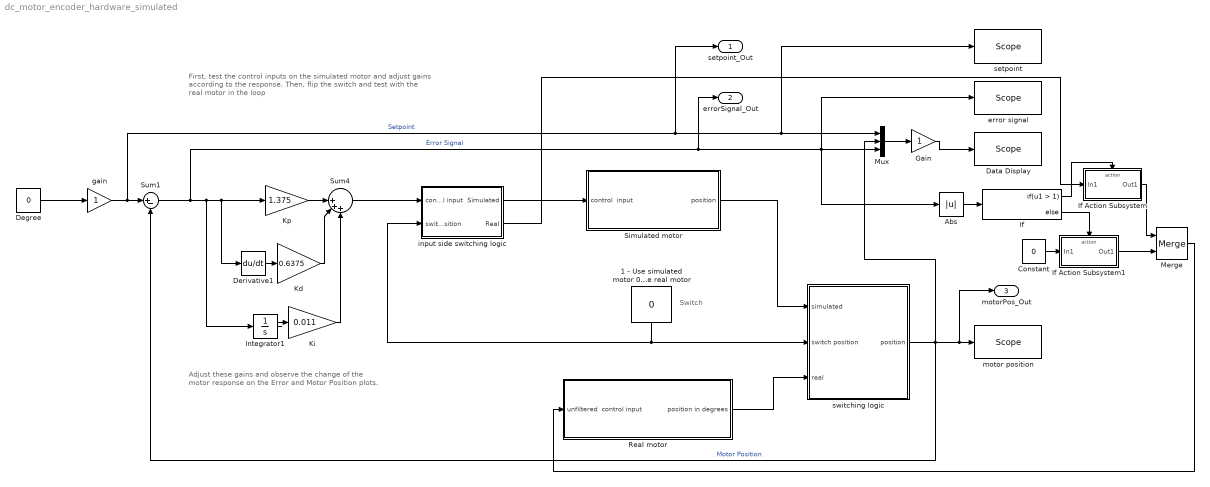
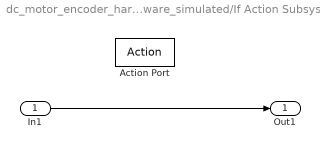
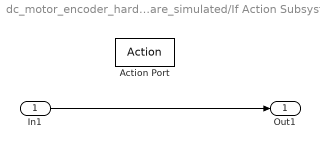
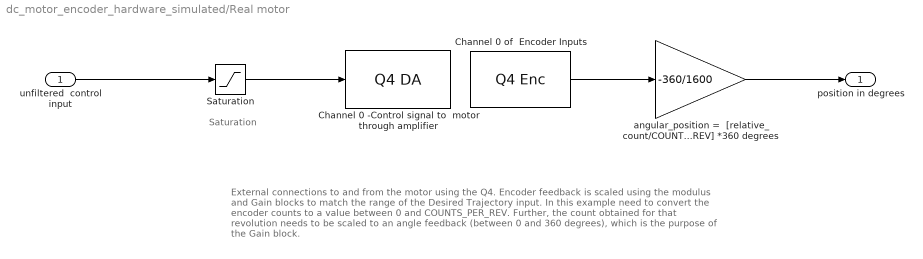
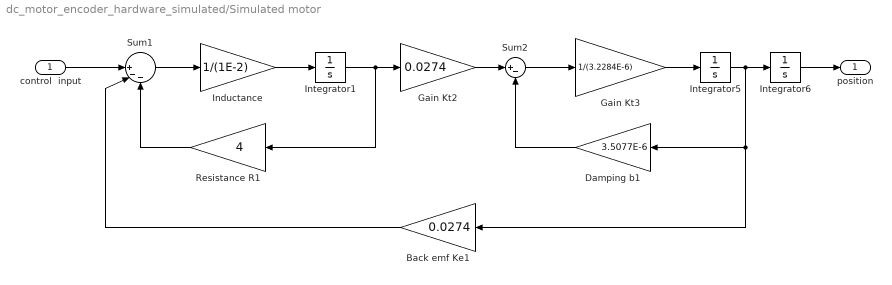
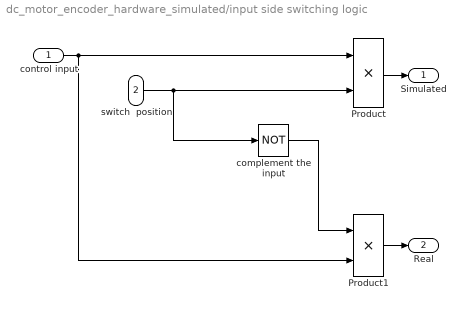
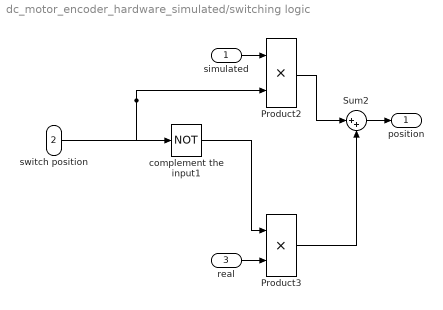
/*
 * dc_motor_encoder_hardware_simulated.c
 *
 * Academic Student License -- for use by students to meet course
 * requirements and perform academic research at degree granting
 * institutions only.  Not for government, commercial, or other
 * organizational use.
 *
 * Code generation for model "dc_motor_encoder_hardware_simulated".
 *
 * Model version              : 1.90
 * Simulink Coder version : 8.12 (R2017a) 16-Feb-2017
 * C source code generated on : Wed Mar 07 18:03:25 2018
 *
 * Target selection: slrt.tlc
 * Note: GRT includes extra infrastructure and instrumentation for prototyping
 * Embedded hardware selection: Generic->32-bit x86 compatible
 * Code generation objectives: Unspecified
 * Validation result: Not run
 */

#include "rt_logging_mmi.h"
#include "dc_motor_encoder_hardware_simulated_capi.h"
#include "dc_motor_encoder_hardware_simulated.h"
#include "dc_motor_encoder_hardware_simulated_private.h"

/* Block signals (auto storage) */
B_dc_motor_encoder_hardware_simulated_T dc_motor_encoder_hardware_simulated_B;

/* Continuous states */
X_dc_motor_encoder_hardware_simulated_T dc_motor_encoder_hardware_simulated_X;

/* Block states (auto storage) */
DW_dc_motor_encoder_hardware_simulated_T dc_motor_encoder_hardware_simulated_DW;

/* External outputs (root outports fed by signals with auto storage) */
ExtY_dc_motor_encoder_hardware_simulated_T dc_motor_encoder_hardware_simulated_Y;

/* Real-time model */
RT_MODEL_dc_motor_encoder_hardware_simulated_T
  dc_motor_encoder_hardware_simulated_M_;
RT_MODEL_dc_motor_encoder_hardware_simulated_T *const
  dc_motor_encoder_hardware_simulated_M =
  &dc_motor_encoder_hardware_simulated_M_;

/*
 * This function updates continuous states using the ODE3 fixed-step
 * solver algorithm
 */
static void rt_ertODEUpdateContinuousStates(RTWSolverInfo *si )
{
  /* Solver Matrices */
  static const real_T rt_ODE3_A[3] = {
    1.0/2.0, 3.0/4.0, 1.0
  };

  static const real_T rt_ODE3_B[3][3] = {
    { 1.0/2.0, 0.0, 0.0 },

    { 0.0, 3.0/4.0, 0.0 },

    { 2.0/9.0, 1.0/3.0, 4.0/9.0 }
  };

  time_T t = rtsiGetT(si);
  time_T tnew = rtsiGetSolverStopTime(si);
  time_T h = rtsiGetStepSize(si);
  real_T *x = rtsiGetContStates(si);
  ODE3_IntgData *id = (ODE3_IntgData *)rtsiGetSolverData(si);
  real_T *y = id->y;
  real_T *f0 = id->f[0];
  real_T *f1 = id->f[1];
  real_T *f2 = id->f[2];
  real_T hB[3];
  int_T i;
  int_T nXc = 4;
  rtsiSetSimTimeStep(si,MINOR_TIME_STEP);

  /* Save the state values at time t in y, we'll use x as ynew. */
  (void) memcpy(y, x,
                (uint_T)nXc*sizeof(real_T));

  /* Assumes that rtsiSetT and ModelOutputs are up-to-date */
  /* f0 = f(t,y) */
  rtsiSetdX(si, f0);
  dc_motor_encoder_hardware_simulated_derivatives();

  /* f(:,2) = feval(odefile, t + hA(1), y + f*hB(:,1), args(:)(*)); */
  hB[0] = h * rt_ODE3_B[0][0];
  for (i = 0; i < nXc; i++) {
    x[i] = y[i] + (f0[i]*hB[0]);
  }

  rtsiSetT(si, t + h*rt_ODE3_A[0]);
  rtsiSetdX(si, f1);
  dc_motor_encoder_hardware_simulated_output();
  dc_motor_encoder_hardware_simulated_derivatives();

  /* f(:,3) = feval(odefile, t + hA(2), y + f*hB(:,2), args(:)(*)); */
  for (i = 0; i <= 1; i++) {
    hB[i] = h * rt_ODE3_B[1][i];
  }

  for (i = 0; i < nXc; i++) {
    x[i] = y[i] + (f0[i]*hB[0] + f1[i]*hB[1]);
  }

  rtsiSetT(si, t + h*rt_ODE3_A[1]);
  rtsiSetdX(si, f2);
  dc_motor_encoder_hardware_simulated_output();
  dc_motor_encoder_hardware_simulated_derivatives();

  /* tnew = t + hA(3);
     ynew = y + f*hB(:,3); */
  for (i = 0; i <= 2; i++) {
    hB[i] = h * rt_ODE3_B[2][i];
  }

  for (i = 0; i < nXc; i++) {
    x[i] = y[i] + (f0[i]*hB[0] + f1[i]*hB[1] + f2[i]*hB[2]);
  }

  rtsiSetT(si, tnew);
  rtsiSetSimTimeStep(si,MAJOR_TIME_STEP);
}

/*
 * Output and update for action system:
 *    '<Root>/If Action Subsystem'
 *    '<Root>/If Action Subsystem1'
 */
void dc_motor_enco_IfActionSubsystem(real_T rtu_In1, real_T *rty_Out1)
{
  /* Inport: '<S2>/In1' */
  *rty_Out1 = rtu_In1;
}

/* Model output function */
void dc_motor_encoder_hardware_simulated_output(void)
{
  real_T *lastU;
  real_T lastTime;
  int8_T rtAction;
  real_T u1;
  real_T u2;
  if (rtmIsMajorTimeStep(dc_motor_encoder_hardware_simulated_M)) {
    /* set solver stop time */
    if (!(dc_motor_encoder_hardware_simulated_M->Timing.clockTick0+1)) {
      rtsiSetSolverStopTime(&dc_motor_encoder_hardware_simulated_M->solverInfo,
                            ((dc_motor_encoder_hardware_simulated_M->Timing.clockTickH0
        + 1) * dc_motor_encoder_hardware_simulated_M->Timing.stepSize0 *
        4294967296.0));
    } else {
      rtsiSetSolverStopTime(&dc_motor_encoder_hardware_simulated_M->solverInfo,
                            ((dc_motor_encoder_hardware_simulated_M->Timing.clockTick0
        + 1) * dc_motor_encoder_hardware_simulated_M->Timing.stepSize0 +
        dc_motor_encoder_hardware_simulated_M->Timing.clockTickH0 *
        dc_motor_encoder_hardware_simulated_M->Timing.stepSize0 * 4294967296.0));
    }
  }                                    /* end MajorTimeStep */

  /* Update absolute time of base rate at minor time step */
  if (rtmIsMinorTimeStep(dc_motor_encoder_hardware_simulated_M)) {
    dc_motor_encoder_hardware_simulated_M->Timing.t[0] = rtsiGetT
      (&dc_motor_encoder_hardware_simulated_M->solverInfo);
  }

  /* Reset subsysRan breadcrumbs */
  srClearBC
    (dc_motor_encoder_hardware_simulated_DW.IfActionSubsystem.IfActionSubsystem_SubsysRanBC);

  /* Integrator: '<S5>/Integrator6' */
  dc_motor_encoder_hardware_simulated_B.Integrator6 =
    dc_motor_encoder_hardware_simulated_X.Integrator6_CSTATE;

  /* Product: '<S10>/Product2' incorporates:
   *  Constant: '<Root>/1 - Use simulated motor 0 - Use real motor'
   */
  dc_motor_encoder_hardware_simulated_B.Product2 =
    dc_motor_encoder_hardware_simulated_B.Integrator6 *
    dc_motor_encoder_hardware_simulated_P.uUsesimulatedmotor0Userealmotor;
  if (rtmIsMajorTimeStep(dc_motor_encoder_hardware_simulated_M)) {
    /* Gain: '<Root>/gain' incorporates:
     *  Constant: '<Root>/Degree'
     */
    dc_motor_encoder_hardware_simulated_B.Setpoint =
      dc_motor_encoder_hardware_simulated_P.gain_Gain *
      dc_motor_encoder_hardware_simulated_P.Degree_Value;

    /* Outport: '<Root>/setpoint_Out' */
    dc_motor_encoder_hardware_simulated_Y.setpoint_Out =
      dc_motor_encoder_hardware_simulated_B.Setpoint;

    /* Logic: '<S10>/complement the input1' incorporates:
     *  Constant: '<Root>/1 - Use simulated motor 0 - Use real motor'
     */
    dc_motor_encoder_hardware_simulated_B.complementtheinput1 =
      !(dc_motor_encoder_hardware_simulated_P.uUsesimulatedmotor0Userealmotor !=
        0.0);

    /* S-Function (encquanserq8): '<S4>/Channel 0 of  Encoder Inputs ' */

    /* Level2 S-Function Block: '<S4>/Channel 0 of  Encoder Inputs ' (encquanserq8) */
    {
      SimStruct *rts = dc_motor_encoder_hardware_simulated_M->childSfunctions[0];
      sfcnOutputs(rts,1);
    }

    /* Gain: '<S4>/angular_position =  [relative_count//COUNTS_PER_REV] *360 degrees' */
    dc_motor_encoder_hardware_simulated_B.angular_positionrelative_countC =
      dc_motor_encoder_hardware_simulated_P.angular_positionrelative_countC *
      dc_motor_encoder_hardware_simulated_B.Channel0ofEncoderInputs;

    /* Product: '<S10>/Product3' */
    dc_motor_encoder_hardware_simulated_B.Product3 = (real_T)
      dc_motor_encoder_hardware_simulated_B.complementtheinput1 *
      dc_motor_encoder_hardware_simulated_B.angular_positionrelative_countC;
  }

  /* Sum: '<S10>/Sum2' */
  dc_motor_encoder_hardware_simulated_B.Sum2 =
    dc_motor_encoder_hardware_simulated_B.Product2 +
    dc_motor_encoder_hardware_simulated_B.Product3;

  /* Sum: '<Root>/Sum1' */
  dc_motor_encoder_hardware_simulated_B.ErrorSignal =
    dc_motor_encoder_hardware_simulated_B.Setpoint
    - dc_motor_encoder_hardware_simulated_B.Sum2;

  /* Outport: '<Root>/errorSignal_Out' */
  dc_motor_encoder_hardware_simulated_Y.errorSignal_Out =
    dc_motor_encoder_hardware_simulated_B.ErrorSignal;

  /* Outport: '<Root>/motorPos_Out' */
  dc_motor_encoder_hardware_simulated_Y.motorPos_Out =
    dc_motor_encoder_hardware_simulated_B.Sum2;

  /* S-Function (scblock): '<S1>/S-Function' */
  /* ok to acquire for <S1>/S-Function */
  dc_motor_encoder_hardware_simulated_DW.SFunction_IWORK.AcquireOK = 1;

  /* S-Function (scblock): '<S6>/S-Function' */
  /* ok to acquire for <S6>/S-Function */
  dc_motor_encoder_hardware_simulated_DW.SFunction_IWORK_i.AcquireOK = 1;

  /* S-Function (scblock): '<S8>/S-Function' */
  /* ok to acquire for <S8>/S-Function */
  dc_motor_encoder_hardware_simulated_DW.SFunction_IWORK_it.AcquireOK = 1;
  if (rtmIsMajorTimeStep(dc_motor_encoder_hardware_simulated_M)) {
    /* S-Function (scblock): '<S9>/S-Function' */
    /* ok to acquire for <S9>/S-Function */
    dc_motor_encoder_hardware_simulated_DW.SFunction_IWORK_n.AcquireOK = 1;
  }

  /* Abs: '<Root>/Abs' */
  dc_motor_encoder_hardware_simulated_B.Abs = fabs
    (dc_motor_encoder_hardware_simulated_B.ErrorSignal);

  /* Derivative: '<Root>/Derivative1' */
  if ((dc_motor_encoder_hardware_simulated_DW.TimeStampA >=
       dc_motor_encoder_hardware_simulated_M->Timing.t[0]) &&
      (dc_motor_encoder_hardware_simulated_DW.TimeStampB >=
       dc_motor_encoder_hardware_simulated_M->Timing.t[0])) {
    dc_motor_encoder_hardware_simulated_B.Derivative1 = 0.0;
  } else {
    lastTime = dc_motor_encoder_hardware_simulated_DW.TimeStampA;
    lastU = &dc_motor_encoder_hardware_simulated_DW.LastUAtTimeA;
    if (dc_motor_encoder_hardware_simulated_DW.TimeStampA <
        dc_motor_encoder_hardware_simulated_DW.TimeStampB) {
      if (dc_motor_encoder_hardware_simulated_DW.TimeStampB <
          dc_motor_encoder_hardware_simulated_M->Timing.t[0]) {
        lastTime = dc_motor_encoder_hardware_simulated_DW.TimeStampB;
        lastU = &dc_motor_encoder_hardware_simulated_DW.LastUAtTimeB;
      }
    } else {
      if (dc_motor_encoder_hardware_simulated_DW.TimeStampA >=
          dc_motor_encoder_hardware_simulated_M->Timing.t[0]) {
        lastTime = dc_motor_encoder_hardware_simulated_DW.TimeStampB;
        lastU = &dc_motor_encoder_hardware_simulated_DW.LastUAtTimeB;
      }
    }

    lastTime = dc_motor_encoder_hardware_simulated_M->Timing.t[0] - lastTime;
    dc_motor_encoder_hardware_simulated_B.Derivative1 =
      (dc_motor_encoder_hardware_simulated_B.ErrorSignal - *lastU) / lastTime;
  }

  /* End of Derivative: '<Root>/Derivative1' */

  /* Gain: '<Root>/Gain' */
  dc_motor_encoder_hardware_simulated_B.Gain[0] =
    dc_motor_encoder_hardware_simulated_P.Gain_Gain *
    dc_motor_encoder_hardware_simulated_B.Setpoint;
  dc_motor_encoder_hardware_simulated_B.Gain[1] =
    dc_motor_encoder_hardware_simulated_P.Gain_Gain *
    dc_motor_encoder_hardware_simulated_B.Sum2;
  dc_motor_encoder_hardware_simulated_B.Gain[2] =
    dc_motor_encoder_hardware_simulated_P.Gain_Gain *
    dc_motor_encoder_hardware_simulated_B.ErrorSignal;
  if (rtmIsMajorTimeStep(dc_motor_encoder_hardware_simulated_M)) {
    /* Logic: '<S7>/complement the input' incorporates:
     *  Constant: '<Root>/1 - Use simulated motor 0 - Use real motor'
     */
    dc_motor_encoder_hardware_simulated_B.complementtheinput =
      !(dc_motor_encoder_hardware_simulated_P.uUsesimulatedmotor0Userealmotor !=
        0.0);
  }

  /* Gain: '<Root>/Kp' */
  dc_motor_encoder_hardware_simulated_B.Kp =
    dc_motor_encoder_hardware_simulated_P.Kp_Gain *
    dc_motor_encoder_hardware_simulated_B.ErrorSignal;

  /* Gain: '<Root>/Kd' */
  dc_motor_encoder_hardware_simulated_B.Kd =
    dc_motor_encoder_hardware_simulated_P.Kd_Gain *
    dc_motor_encoder_hardware_simulated_B.Derivative1;

  /* Integrator: '<Root>/Integrator1' */
  dc_motor_encoder_hardware_simulated_B.Integrator1 =
    dc_motor_encoder_hardware_simulated_X.Integrator1_CSTATE;

  /* Gain: '<Root>/Ki' */
  dc_motor_encoder_hardware_simulated_B.Ki =
    dc_motor_encoder_hardware_simulated_P.Ki_Gain *
    dc_motor_encoder_hardware_simulated_B.Integrator1;

  /* Sum: '<Root>/Sum4' */
  dc_motor_encoder_hardware_simulated_B.Sum4 =
    (dc_motor_encoder_hardware_simulated_B.Kp +
     dc_motor_encoder_hardware_simulated_B.Kd) +
    dc_motor_encoder_hardware_simulated_B.Ki;

  /* Product: '<S7>/Product1' */
  dc_motor_encoder_hardware_simulated_B.Product1 = (real_T)
    dc_motor_encoder_hardware_simulated_B.complementtheinput *
    dc_motor_encoder_hardware_simulated_B.Sum4;

  /* If: '<Root>/If' incorporates:
   *  Constant: '<Root>/Constant'
   */
  if (rtmIsMajorTimeStep(dc_motor_encoder_hardware_simulated_M)) {
    rtAction = (int8_T)!(dc_motor_encoder_hardware_simulated_B.Abs > 1.0);
    dc_motor_encoder_hardware_simulated_DW.If_ActiveSubsystem = rtAction;
  } else {
    rtAction = dc_motor_encoder_hardware_simulated_DW.If_ActiveSubsystem;
  }

  switch (rtAction) {
   case 0:
    /* Outputs for IfAction SubSystem: '<Root>/If Action Subsystem' incorporates:
     *  ActionPort: '<S2>/Action Port'
     */
    dc_motor_enco_IfActionSubsystem
      (dc_motor_encoder_hardware_simulated_B.Product1,
       &dc_motor_encoder_hardware_simulated_B.Merge);
    if (rtmIsMajorTimeStep(dc_motor_encoder_hardware_simulated_M)) {
      srUpdateBC
        (dc_motor_encoder_hardware_simulated_DW.IfActionSubsystem.IfActionSubsystem_SubsysRanBC);
    }

    /* End of Outputs for SubSystem: '<Root>/If Action Subsystem' */
    break;

   case 1:
    /* Outputs for IfAction SubSystem: '<Root>/If Action Subsystem1' incorporates:
     *  ActionPort: '<S3>/Action Port'
     */
    dc_motor_enco_IfActionSubsystem
      (dc_motor_encoder_hardware_simulated_P.Constant_Value,
       &dc_motor_encoder_hardware_simulated_B.Merge);
    if (rtmIsMajorTimeStep(dc_motor_encoder_hardware_simulated_M)) {
      srUpdateBC
        (dc_motor_encoder_hardware_simulated_DW.IfActionSubsystem1.IfActionSubsystem_SubsysRanBC);
    }

    /* End of Outputs for SubSystem: '<Root>/If Action Subsystem1' */
    break;
  }

  /* End of If: '<Root>/If' */

  /* Saturate: '<S4>/Saturation' */
  lastTime = dc_motor_encoder_hardware_simulated_B.Merge;
  u1 = dc_motor_encoder_hardware_simulated_P.Saturation_LowerSat;
  u2 = dc_motor_encoder_hardware_simulated_P.Saturation_UpperSat;
  if (lastTime > u2) {
    dc_motor_encoder_hardware_simulated_B.Saturation = u2;
  } else if (lastTime < u1) {
    dc_motor_encoder_hardware_simulated_B.Saturation = u1;
  } else {
    dc_motor_encoder_hardware_simulated_B.Saturation = lastTime;
  }

  /* End of Saturate: '<S4>/Saturation' */
  if (rtmIsMajorTimeStep(dc_motor_encoder_hardware_simulated_M)) {
    /* S-Function (daquanserq8): '<S4>/Channel 0 -Control signal to  motor through amplifier ' */

    /* Level2 S-Function Block: '<S4>/Channel 0 -Control signal to  motor through amplifier ' (daquanserq8) */
    {
      SimStruct *rts = dc_motor_encoder_hardware_simulated_M->childSfunctions[1];
      sfcnOutputs(rts,1);
    }
  }

  /* Integrator: '<S5>/Integrator5' */
  dc_motor_encoder_hardware_simulated_B.Integrator5 =
    dc_motor_encoder_hardware_simulated_X.Integrator5_CSTATE;

  /* Gain: '<S5>/Back emf Ke1' */
  dc_motor_encoder_hardware_simulated_B.BackemfKe1 =
    dc_motor_encoder_hardware_simulated_P.BackemfKe1_Gain *
    dc_motor_encoder_hardware_simulated_B.Integrator5;

  /* Gain: '<S5>/Damping b1' */
  dc_motor_encoder_hardware_simulated_B.Dampingb1 =
    dc_motor_encoder_hardware_simulated_P.Dampingb1_Gain *
    dc_motor_encoder_hardware_simulated_B.Integrator5;

  /* Integrator: '<S5>/Integrator1' */
  dc_motor_encoder_hardware_simulated_B.Integrator1_h =
    dc_motor_encoder_hardware_simulated_X.Integrator1_CSTATE_i;

  /* Gain: '<S5>/Gain Kt2' */
  dc_motor_encoder_hardware_simulated_B.GainKt2 =
    dc_motor_encoder_hardware_simulated_P.GainKt2_Gain *
    dc_motor_encoder_hardware_simulated_B.Integrator1_h;

  /* Sum: '<S5>/Sum2' */
  dc_motor_encoder_hardware_simulated_B.Sum2_e =
    dc_motor_encoder_hardware_simulated_B.GainKt2 -
    dc_motor_encoder_hardware_simulated_B.Dampingb1;

  /* Gain: '<S5>/Gain Kt3' */
  dc_motor_encoder_hardware_simulated_B.GainKt3 =
    dc_motor_encoder_hardware_simulated_P.GainKt3_Gain *
    dc_motor_encoder_hardware_simulated_B.Sum2_e;

  /* Product: '<S7>/Product' incorporates:
   *  Constant: '<Root>/1 - Use simulated motor 0 - Use real motor'
   */
  dc_motor_encoder_hardware_simulated_B.Product =
    dc_motor_encoder_hardware_simulated_B.Sum4 *
    dc_motor_encoder_hardware_simulated_P.uUsesimulatedmotor0Userealmotor;

  /* Gain: '<S5>/Resistance R1' */
  dc_motor_encoder_hardware_simulated_B.ResistanceR1 =
    dc_motor_encoder_hardware_simulated_P.ResistanceR1_Gain *
    dc_motor_encoder_hardware_simulated_B.Integrator1_h;

  /* Sum: '<S5>/Sum1' */
  dc_motor_encoder_hardware_simulated_B.Sum1 =
    (dc_motor_encoder_hardware_simulated_B.Product -
     dc_motor_encoder_hardware_simulated_B.BackemfKe1) -
    dc_motor_encoder_hardware_simulated_B.ResistanceR1;

  /* Gain: '<S5>/Inductance' */
  dc_motor_encoder_hardware_simulated_B.Inductance =
    dc_motor_encoder_hardware_simulated_P.Inductance_Gain *
    dc_motor_encoder_hardware_simulated_B.Sum1;
}

/* Model update function */
void dc_motor_encoder_hardware_simulated_update(void)
{
  real_T *lastU;

  /* Update for Derivative: '<Root>/Derivative1' */
  if (dc_motor_encoder_hardware_simulated_DW.TimeStampA == (rtInf)) {
    dc_motor_encoder_hardware_simulated_DW.TimeStampA =
      dc_motor_encoder_hardware_simulated_M->Timing.t[0];
    lastU = &dc_motor_encoder_hardware_simulated_DW.LastUAtTimeA;
  } else if (dc_motor_encoder_hardware_simulated_DW.TimeStampB == (rtInf)) {
    dc_motor_encoder_hardware_simulated_DW.TimeStampB =
      dc_motor_encoder_hardware_simulated_M->Timing.t[0];
    lastU = &dc_motor_encoder_hardware_simulated_DW.LastUAtTimeB;
  } else if (dc_motor_encoder_hardware_simulated_DW.TimeStampA <
             dc_motor_encoder_hardware_simulated_DW.TimeStampB) {
    dc_motor_encoder_hardware_simulated_DW.TimeStampA =
      dc_motor_encoder_hardware_simulated_M->Timing.t[0];
    lastU = &dc_motor_encoder_hardware_simulated_DW.LastUAtTimeA;
  } else {
    dc_motor_encoder_hardware_simulated_DW.TimeStampB =
      dc_motor_encoder_hardware_simulated_M->Timing.t[0];
    lastU = &dc_motor_encoder_hardware_simulated_DW.LastUAtTimeB;
  }

  *lastU = dc_motor_encoder_hardware_simulated_B.ErrorSignal;

  /* End of Update for Derivative: '<Root>/Derivative1' */
  if (rtmIsMajorTimeStep(dc_motor_encoder_hardware_simulated_M)) {
    rt_ertODEUpdateContinuousStates
      (&dc_motor_encoder_hardware_simulated_M->solverInfo);
  }

  /* Update absolute time for base rate */
  /* The "clockTick0" counts the number of times the code of this task has
   * been executed. The absolute time is the multiplication of "clockTick0"
   * and "Timing.stepSize0". Size of "clockTick0" ensures timer will not
   * overflow during the application lifespan selected.
   * Timer of this task consists of two 32 bit unsigned integers.
   * The two integers represent the low bits Timing.clockTick0 and the high bits
   * Timing.clockTickH0. When the low bit overflows to 0, the high bits increment.
   */
  if (!(++dc_motor_encoder_hardware_simulated_M->Timing.clockTick0)) {
    ++dc_motor_encoder_hardware_simulated_M->Timing.clockTickH0;
  }

  dc_motor_encoder_hardware_simulated_M->Timing.t[0] = rtsiGetSolverStopTime
    (&dc_motor_encoder_hardware_simulated_M->solverInfo);

  {
    /* Update absolute timer for sample time: [0.001s, 0.0s] */
    /* The "clockTick1" counts the number of times the code of this task has
     * been executed. The absolute time is the multiplication of "clockTick1"
     * and "Timing.stepSize1". Size of "clockTick1" ensures timer will not
     * overflow during the application lifespan selected.
     * Timer of this task consists of two 32 bit unsigned integers.
     * The two integers represent the low bits Timing.clockTick1 and the high bits
     * Timing.clockTickH1. When the low bit overflows to 0, the high bits increment.
     */
    if (!(++dc_motor_encoder_hardware_simulated_M->Timing.clockTick1)) {
      ++dc_motor_encoder_hardware_simulated_M->Timing.clockTickH1;
    }

    dc_motor_encoder_hardware_simulated_M->Timing.t[1] =
      dc_motor_encoder_hardware_simulated_M->Timing.clockTick1 *
      dc_motor_encoder_hardware_simulated_M->Timing.stepSize1 +
      dc_motor_encoder_hardware_simulated_M->Timing.clockTickH1 *
      dc_motor_encoder_hardware_simulated_M->Timing.stepSize1 * 4294967296.0;
  }
}
